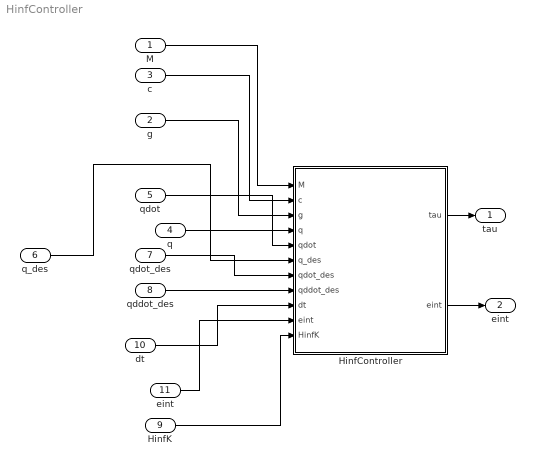
== matlab function HinfController/HinfController ==
function [tau,eint]  = HinfController(M,c,g,q,qdot,q_des,qdot_des,qddot_des,dt,eint,HinfK)

e = q_des-q;
edot = qdot_des-qdot;
eint = eint+e.*dt;
qddot_ref =qddot_des+100*e+20*edot;

tau = M*qddot_ref+c+g+diag(HinfK)*(edot+20*e+100*eint);

/*
 * HinfController.c
 *
 * Academic License - for use in teaching, academic research, and meeting
 * course requirements at degree granting institutions only.  Not for
 * government, commercial, or other organizational use.
 *
 * Code generation for model "HinfController".
 *
 * Model version              : 2.10
 * Simulink Coder version : 24.2 (R2024b) 21-Jun-2024
 * C source code generated on : Sat May  3 21:47:03 2025
 *
 * Target selection: grt.tlc
 * Note: GRT includes extra infrastructure and instrumentation for prototyping
 * Embedded hardware selection: Intel->x86-64 (Linux 64)
 * Code generation objectives: Unspecified
 * Validation result: Not run
 */

#include "HinfController.h"
#include <string.h>
#include <emmintrin.h>
#include "rtwtypes.h"
#include "HinfController_private.h"

/* External inputs (root inport signals with default storage) */
ExtU_HinfController_T HinfController_U;

/* External outputs (root outports fed by signals with default storage) */
ExtY_HinfController_T HinfController_Y;

/* Real-time model */
static RT_MODEL_HinfController_T HinfController_M_;
RT_MODEL_HinfController_T *const HinfController_M = &HinfController_M_;

/* Model step function */
void HinfController_step(void)
{
  __m128d tmp_1;
  real_T a[144];
  real_T e[12];
  real_T edot[12];
  real_T edot_0[12];
  real_T rtb_eint[12];
  real_T tmp[12];
  real_T tmp_2[2];
  real_T a_0;
  real_T tmp_0;
  int32_T i;
  int32_T i_0;
  int32_T tmp_3;

  /* MATLAB Function: '<Root>/HinfController' incorporates:
   *  Inport: '<Root>/HinfK'
   *  Inport: '<Root>/M'
   *  Inport: '<Root>/dt'
   *  Inport: '<Root>/eint '
   *  Inport: '<Root>/q'
   *  Inport: '<Root>/q_des'
   *  Inport: '<Root>/qddot_des'
   *  Inport: '<Root>/qdot'
   *  Inport: '<Root>/qdot_des'
   */
  for (i = 0; i <= 10; i += 2) {
    tmp_1 = _mm_sub_pd(_mm_loadu_pd(&HinfController_U.q_des[i]), _mm_loadu_pd
                       (&HinfController_U.q[i]));
    _mm_storeu_pd(&e[i], tmp_1);
    _mm_storeu_pd(&edot[i], _mm_sub_pd(_mm_loadu_pd(&HinfController_U.qdot_des[i]),
      _mm_loadu_pd(&HinfController_U.qdot[i])));
    _mm_storeu_pd(&rtb_eint[i], _mm_add_pd(_mm_mul_pd(tmp_1, _mm_set1_pd
      (HinfController_U.dt)), _mm_loadu_pd(&HinfController_U.eint[i])));
  }

  memset(&a[0], 0, 144U * sizeof(real_T));
  for (i = 0; i < 12; i++) {
    a[i + 12 * i] = HinfController_U.HinfK[i];
    _mm_storeu_pd(&tmp_2[0], _mm_add_pd(_mm_add_pd(_mm_mul_pd(_mm_set_pd(20.0,
      100.0), _mm_set1_pd(e[i])), _mm_set_pd(edot[i],
      HinfController_U.qddot_des[i])), _mm_mul_pd(_mm_set_pd(100.0, 20.0),
      _mm_set_pd(rtb_eint[i], edot[i]))));
    tmp[i] = tmp_2[0];
    edot_0[i] = tmp_2[1];
  }

  for (i = 0; i < 12; i++) {
    tmp_0 = 0.0;
    a_0 = 0.0;
    for (i_0 = 0; i_0 < 12; i_0++) {
      tmp_3 = 12 * i_0 + i;
      _mm_storeu_pd(&tmp_2[0], _mm_add_pd(_mm_mul_pd(_mm_set_pd(a[tmp_3],
        HinfController_U.M[tmp_3]), _mm_set_pd(edot_0[i_0], tmp[i_0])),
        _mm_set_pd(a_0, tmp_0)));
      tmp_0 = tmp_2[0];
      a_0 = tmp_2[1];
    }

    /* Outport: '<Root>/tau' incorporates:
     *  Inport: '<Root>/M'
     *  Inport: '<Root>/c'
     *  Inport: '<Root>/g'
     */
    HinfController_Y.tau[i] = ((tmp_0 + HinfController_U.c[i]) +
      HinfController_U.g[i]) + a_0;

    /* Outport: '<Root>/eint' */
    HinfController_Y.eint[i] = rtb_eint[i];
  }

  /* End of MATLAB Function: '<Root>/HinfController' */

  /* Matfile logging */
  rt_UpdateTXYLogVars(HinfController_M->rtwLogInfo,
                      (&HinfController_M->Timing.taskTime0));

  /* signal main to stop simulation */
  {                                    /* Sample time: [0.001s, 0.0s] */
    if ((rtmGetTFinal(HinfController_M)!=-1) &&
        !((rtmGetTFinal(HinfController_M)-HinfController_M->Timing.taskTime0) >
          HinfController_M->Timing.taskTime0 * (DBL_EPSILON))) {
      rtmSetErrorStatus(HinfController_M, "Simulation finished");
    }
  }

  /* Update absolute time for base rate */
  /* The "clockTick0" counts the number of times the code of this task has
   * been executed. The absolute time is the multiplication of "clockTick0"
   * and "Timing.stepSize0". Size of "clockTick0" ensures timer will not
   * overflow during the application lifespan selected.
   * Timer of this task consists of two 32 bit unsigned integers.
   * The two integers represent the low bits Timing.clockTick0 and the high bits
   * Timing.clockTickH0. When the low bit overflows to 0, the high bits increment.
   */
  if (!(++HinfController_M->Timing.clockTick0)) {
    ++HinfController_M->Timing.clockTickH0;
  }

  HinfController_M->Timing.taskTime0 = HinfController_M->Timing.clockTick0 *
    HinfController_M->Timing.stepSize0 + HinfController_M->Timing.clockTickH0 *
    HinfController_M->Timing.stepSize0 * 4294967296.0;
}
